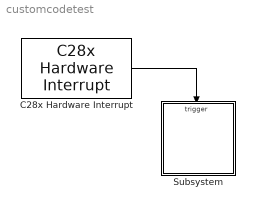
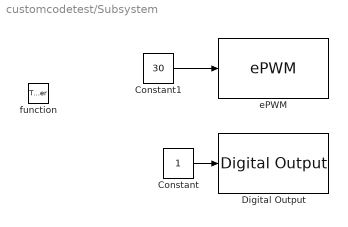
/*
 * File: customcodetest.c
 *
 * Code generated for Simulink model 'customcodetest'.
 *
 * Model version                  : 1.5
 * Simulink Coder version         : 9.0 (R2018b) 24-May-2018
 * C/C++ source code generated on : Mon Feb 25 20:48:46 2019
 *
 * Target selection: ert.tlc
 * Embedded hardware selection: Texas Instruments->C2000
 * Code generation objectives: Unspecified
 * Validation result: Not run
 */

#include "customcodetest.h"
#include "customcodetest_private.h"

/* Real-time model */
RT_MODEL_customcodetest_T customcodetest_M_;
RT_MODEL_customcodetest_T *const customcodetest_M = &customcodetest_M_;

/* Hardware Interrupt Block: '<Root>/C28x Hardware Interrupt' */
void isr_int3pie1_task_fcn(void)
{
  /* Call the system: <Root>/Subsystem */
  {
    /* S-Function (c28xisr_c2000): '<Root>/C28x Hardware Interrupt' */

    /* Output and update for function-call system: '<Root>/Subsystem' */

    /* S-Function (c280xgpio_do): '<S1>/Digital Output' incorporates:
     *  Constant: '<S1>/Constant'
     */
    {
      if (customcodetest_P.Constant_Value)
        GpioDataRegs.GPBSET.bit.GPIO48 = 1;
      else
        GpioDataRegs.GPBCLEAR.bit.GPIO48 = 1;
    }

    /* S-Function (c2802xpwm): '<S1>/ePWM' incorporates:
     *  Constant: '<S1>/Constant1'
     */

    /*-- Update CMPA value for ePWM1 --*/
    {
      EPwm1Regs.CMPA.bit.CMPA = (uint16_T)(customcodetest_P.Constant1_Value);
    }

    /* End of Outputs for S-Function (c28xisr_c2000): '<Root>/C28x Hardware Interrupt' */
  }
}

/* Model step function */
void customcodetest_step(void)
{
  /* (no output/update code required) */
}
